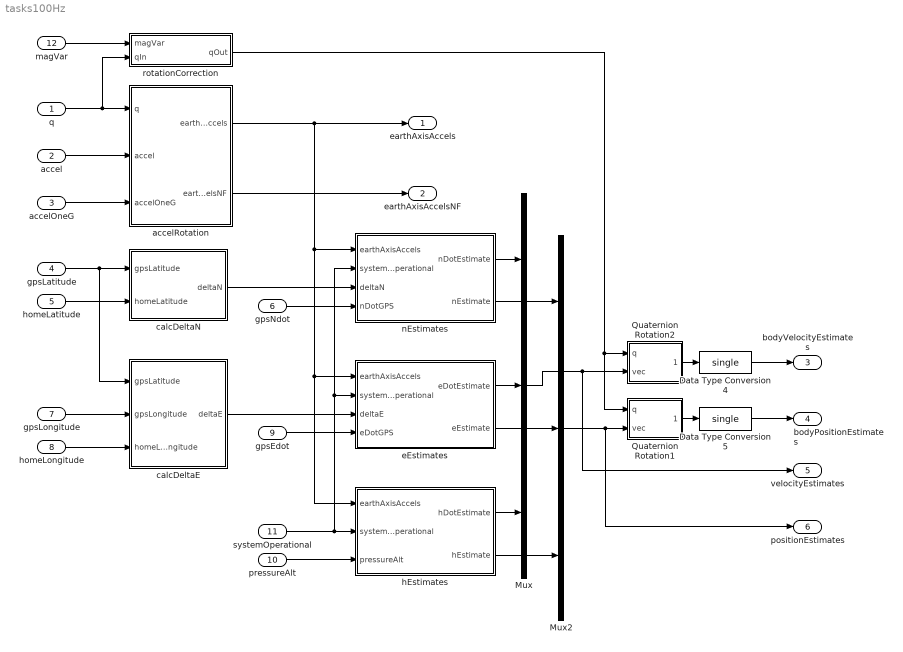
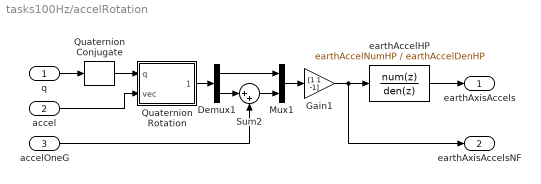
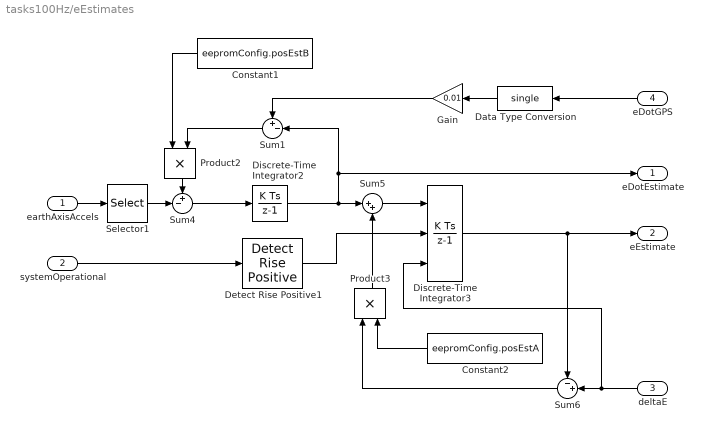
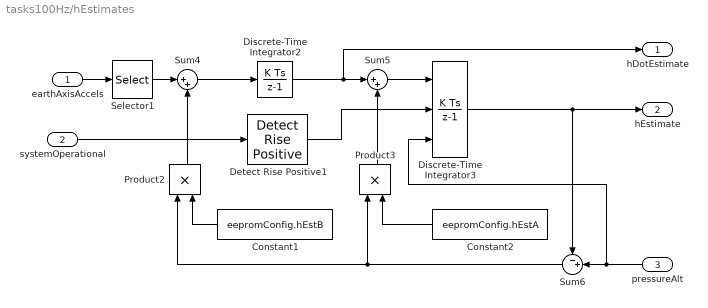
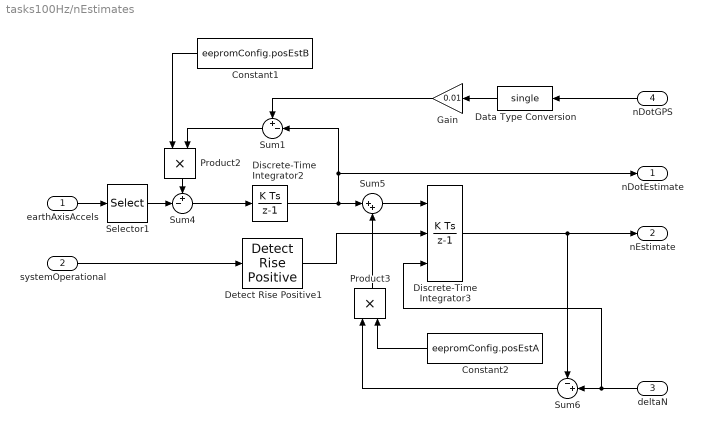
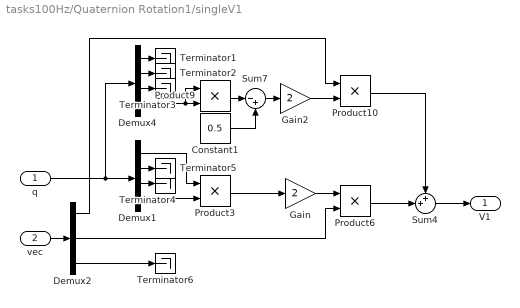
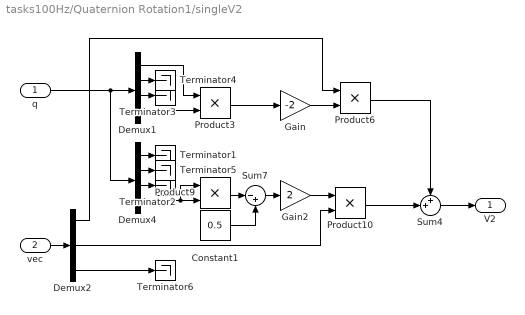
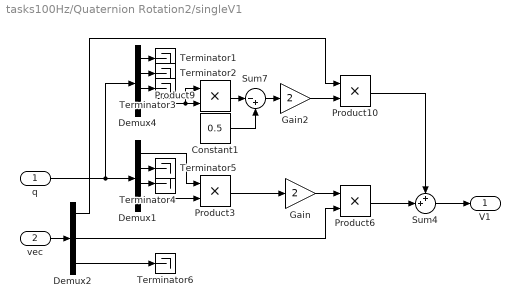
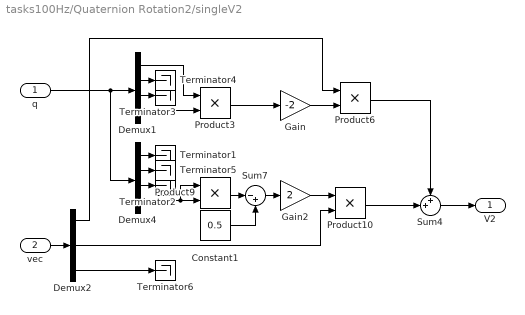
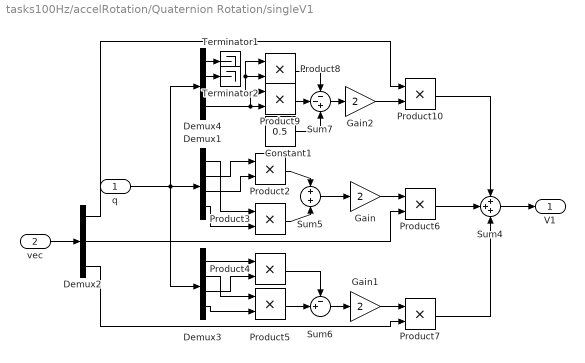
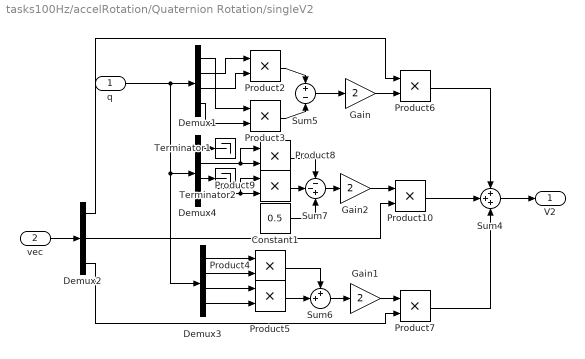
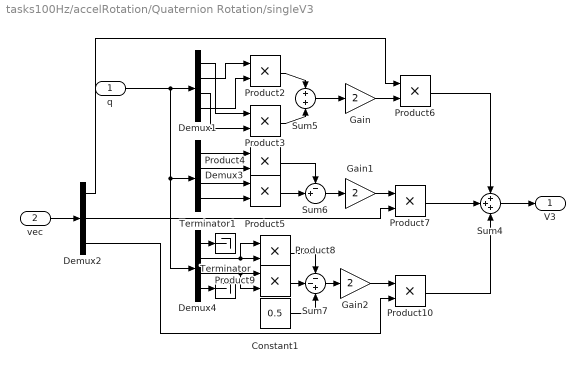
== system tasks100Hz/Quaternion Rotation1 ==
  q : Inport
  vec : Inport  Port=2
  Mux1 : Mux  Inputs=3
  Quaternion Normalize : aerolibutil/Quaternion Normalize
  singleV1 : Subsystem
  singleV2 : Subsystem
  singleV3 : Subsystem
  vec_rot : Outport
  wires:
  q/1 -> Quaternion Normalize/1
  singleV1/1(V1) -> Mux1/1
  vec/1 -> singleV1/2(vec), singleV3/2(vec), singleV2/2(vec)
  Quaternion Normalize/1 -> singleV1/1(q), singleV3/1(q), singleV2/1(q)
  Mux1/1 -> vec_rot/1
  singleV3/1(V3) -> Mux1/3
  singleV2/1(V2) -> Mux1/2

== system tasks100Hz/Quaternion Rotation2 ==
  q : Inport
  vec : Inport  Port=2
  Mux1 : Mux  Inputs=3
  Quaternion Normalize : aerolibutil/Quaternion Normalize
  singleV1 : Subsystem
  singleV2 : Subsystem
  singleV3 : Subsystem
  vec_rot : Outport
  wires:
  singleV2/1(V2) -> Mux1/2
  singleV3/1(V3) -> Mux1/3
  Mux1/1 -> vec_rot/1
  Quaternion Normalize/1 -> singleV2/1(q), singleV3/1(q), singleV1/1(q)
  vec/1 -> singleV2/2(vec), singleV3/2(vec), singleV1/2(vec)
  singleV1/1(V1) -> Mux1/1
  q/1 -> Quaternion Normalize/1

== system tasks100Hz/calcDeltaE ==
  gpsLatitude : Inport
  gpsLongitude : Inport  Port=2
  homeLongitude : Inport  Port=3
  Data Type Conversion2 : DataTypeConversion  OutDataTypeStr=single
  Data Type Conversion3 : DataTypeConversion  OutDataTypeStr=single
  Gain1 : Gain  Gain=pi / 180 * 1e-7
  Gain2 : Gain  Gain=0.01111949
  Product : Product
  Sum2 : Sum  Inputs=|+-
  Trigonometric Function : Trigonometry  Operator=cos
  stdRadianLimit : Subsystem
  deltaE : Outport
  wires:
  stdRadianLimit/1(stdDegrees) -> Gain2/1
  gpsLatitude/1 -> Data Type Conversion2/1
  Data Type Conversion3/1 -> stdRadianLimit/1(degrees)
  Product/1 -> deltaE/1
  Sum2/1 -> Data Type Conversion3/1
  homeLongitude/1 -> Sum2/2
  Gain2/1 -> Product/2
  Trigonometric Function/1 -> Product/1
  Gain1/1 -> Trigonometric Function/1
  Data Type Conversion2/1 -> Gain1/1
  gpsLongitude/1 -> Sum2/1

== system tasks100Hz/calcDeltaN ==
  gpsLatitude : Inport
  homeLatitude : Inport  Port=2
  Data Type Conversion1 : DataTypeConversion  OutDataTypeStr=single
  Gain : Gain  Gain=0.01111949
  Sum1 : Sum  Inputs=|+-
  deltaN : Outport
  wires:
  Sum1/1 -> Data Type Conversion1/1
  homeLatitude/1 -> Sum1/2
  Data Type Conversion1/1 -> Gain/1
  gpsLatitude/1 -> Sum1/1
  Gain/1 -> deltaN/1

== system tasks100Hz/rotationCorrection ==
  magVar : Inport
  qIn : Inport  Port=2
  Demux : Demux  Outputs=[1 2]
  Gain3 : Gain  Gain=[1 0 0]
  Mux : Mux  Inputs=[1 2]
  Quaternions to Rotation Angles : aerolibtransform2/Quaternions to Rotation Angles  rotationOrder=ZYX
  Rotation Angles to Quaternions Rotation Order: ZYX : Subsystem
  Sum : Sum  Inputs=++|
  stdRadianLimit : Subsystem
  qOut : Outport
  wires:
  Mux/1 -> Rotation Angles to Quaternions Rotation Order: ZYX/1("R1, R2, R3")
  Gain3/1 -> Demux/1
  stdRadianLimit/1(stdRadians) -> Mux/1
  Demux/1 -> Sum/2
  Demux/2 -> Mux/2
  magVar/1 -> Sum/1
  Sum/1 -> stdRadianLimit/1(radians)
  qIn/1 -> Quaternions to Rotation Angles/1
  Quaternions to Rotation Angles/1 -> Gain3/1
  Rotation Angles to Quaternions Rotation Order: ZYX/1(q) -> qOut/1

== system tasks100Hz/Quaternion Rotation1/singleV3 ==
  q : Inport
  vec : Inport  Port=2
  Demux2 : Demux  Outputs=3
  Terminator1 : Terminator
  Terminator2 : Terminator
  Terminator3 : Terminator
  V3 : Outport
  wires:
  vec/1 -> Demux2/1
  Demux2/1 -> Terminator2/1
  Demux2/2 -> Terminator3/1
  Demux2/3 -> V3/1
  q/1 -> Terminator1/1

== system tasks100Hz/Quaternion Rotation2/singleV3 ==
  q : Inport
  vec : Inport  Port=2
  Demux2 : Demux  Outputs=3
  Terminator1 : Terminator
  Terminator2 : Terminator
  Terminator3 : Terminator
  V3 : Outport
  wires:
  q/1 -> Terminator1/1
  Demux2/3 -> V3/1
  Demux2/2 -> Terminator3/1
  Demux2/1 -> Terminator2/1
  vec/1 -> Demux2/1

== system tasks100Hz/accelRotation/Quaternion Rotation ==
  q : Inport
  vec : Inport  Port=2
  Mux1 : Mux  Inputs=3
  Quaternion Normalize : aerolibutil/Quaternion Normalize
  singleV1 : Subsystem
  singleV2 : Subsystem
  singleV3 : Subsystem
  vec_rot : Outport
  wires:
  singleV2/1(V2) -> Mux1/2
  singleV3/1(V3) -> Mux1/3
  Mux1/1 -> vec_rot/1
  Quaternion Normalize/1 -> singleV2/1(q), singleV3/1(q), singleV1/1(q)
  vec/1 -> singleV2/2(vec), singleV3/2(vec), singleV1/2(vec)
  singleV1/1(V1) -> Mux1/1
  q/1 -> Quaternion Normalize/1

== system tasks100Hz/calcDeltaE/stdRadianLimit ==
  degrees : Inport
  Bias : Bias  Bias=- 360e7
  Bias1 : Bias  Bias=360e7
  Compare To Constant : simulink/Logic and Bit Operations/Compare To Constant  relop=>=  const=180e7  OutDataTypeStr=boolean
  Compare To Constant1 : simulink/Logic and Bit Operations/Compare To Constant  relop=<  const=-180e7  OutDataTypeStr=boolean
  Switch : Switch  Criteria=u2 > Threshold
  Switch1 : Switch  Criteria=u2 > Threshold
  stdDegrees : Outport
  wires:
  Switch/1 -> stdDegrees/1
  degrees/1 -> Bias/1, Compare To Constant/1, Bias1/1, Compare To Constant1/1, Switch1/3
  Switch1/1 -> Switch/3
  Compare To Constant1/1 -> Switch1/2
  Bias1/1 -> Switch1/1
  Bias/1 -> Switch/1
  Compare To Constant/1 -> Switch/2

== system tasks100Hz/rotationCorrection/Rotation Angles to Quaternions Rotation Order: ZYX ==
  "R1, R2, R3" : Inport
  1/2 : Gain  Gain=0.5  SaturateOnIntegerOverflow=on  OutDataTypeStr=Inherit: Same as input  ParamDataTypeStr=Inherit: Same as input
  Mux4 : Mux
  Selector : Selector  IndexMode=Zero-based  InputPortWidth=3  Indices=0
  Trigonometric Function : Trigonometry
  Trigonometric Function1 : Trigonometry  Operator=cos
  q1 : Constant  Value=0  OutDataTypeStr=single
  q2 : Constant  Value=0  OutDataTypeStr=single
  q : Outport
  wires:
  Selector/1 -> 1/2/1
  "R1, R2, R3"/1 -> Selector/1
  q1/1 -> Mux4/2
  Trigonometric Function1/1 -> Mux4/1
  1/2/1 -> Trigonometric Function/1, Trigonometric Function1/1
  q2/1 -> Mux4/3
  Trigonometric Function/1 -> Mux4/4
  Mux4/1 -> q/1

== system tasks100Hz/rotationCorrection/stdRadianLimit ==
  radians : Inport
  Bias : Bias  Bias=- 2*pi
  Bias1 : Bias  Bias=2*pi
  Compare To Constant : simulink/Logic and Bit Operations/Compare To Constant  relop=>=  const=pi  OutDataTypeStr=boolean
  Compare To Constant1 : simulink/Logic and Bit Operations/Compare To Constant  relop=<  const=-pi  OutDataTypeStr=boolean
  Switch : Switch  Criteria=u2 > Threshold
  Switch1 : Switch  Criteria=u2 > Threshold
  stdRadians : Outport
  wires:
  Switch/1 -> stdRadians/1
  radians/1 -> Bias/1, Compare To Constant/1, Bias1/1, Compare To Constant1/1, Switch1/3
  Switch1/1 -> Switch/3
  Compare To Constant1/1 -> Switch1/2
  Bias1/1 -> Switch1/1
  Bias/1 -> Switch/1
  Compare To Constant/1 -> Switch/2

/*
 * File: tasks100Hz.c
 *
 * Code generated for Simulink model 'tasks100Hz'.
 *
 * Model version                  : 1.392
 * Simulink Coder version         : 8.6 (R2014a) 27-Dec-2013
 * C/C++ source code generated on : Mon Sep 22 19:36:36 2014
 *
 * Target selection: ert.tlc
 * Embedded hardware selection: STMicroelectronics->STM32F4xx 32-bit Cortex-M4
 * Code generation objectives: Unspecified
 * Validation result: Not run
 */

#include "tasks100Hz.h"

/* Exported block parameters */
real32_T earthAccelDenHP[2] = { 1.0F, -0.997503102F } ;/* Variable: earthAccelDenHP
                                                        * Referenced by: '<S3>/earthAccelHP'
                                                        */

real32_T earthAccelNumHP[2] = { 0.998751581F, -0.998751581F } ;/* Variable: earthAccelNumHP
                                                                * Referenced by: '<S3>/earthAccelHP'
                                                                */

/* Block states (auto storage) */
DW_tasks100Hz_T tasks100Hz_DW;

/* External inputs (root inport signals with auto storage) */
ExtU_tasks100Hz_T tasks100Hz_U;

/* External outputs (root outports fed by signals with auto storage) */
ExtY_tasks100Hz_T tasks100Hz_Y;

/* Real-time model */
RT_MODEL_tasks100Hz_T tasks100Hz_M_;
RT_MODEL_tasks100Hz_T *const tasks100Hz_M = &tasks100Hz_M_;

/* Model step function */
void tasks100Hz_step(void)
{
  /* local block i/o variables */
  boolean_T rtb_FixPtRelationalOperator;
  boolean_T rtb_FixPtRelationalOperator_d;
  boolean_T rtb_FixPtRelationalOperator_f;
  real32_T rtb_Product3_d;
  real32_T rtb_DiscreteTimeIntegrator2;
  real32_T rtb_DiscreteTimeIntegrator3;
  real32_T rtb_DiscreteTimeIntegrator3_f;
  real32_T rtb_Product1_c1;
  real32_T rtb_Product2_i;
  real32_T rtb_Product3_b3;
  real32_T rtb_Sum2;
  boolean_T rtb_Compare_dq;
  real32_T rtb_Gain1_e_idx_0;
  real32_T rtb_Gain1_e_idx_1;
  real32_T rtb_Gain1_e_idx_2;
  real32_T rtb_earthAccelHP_idx_0;
  real32_T rtb_earthAccelHP_idx_1;
  real32_T rtb_earthAccelHP_idx_2;

  /* Outputs for Atomic SubSystem: '<Root>/accelRotation' */
  /* Sqrt: '<S28>/sqrt' incorporates:
   *  Inport: '<Root>/q'
   *  Product: '<S29>/Product'
   *  Product: '<S29>/Product1'
   *  Product: '<S29>/Product2'
   *  Product: '<S29>/Product3'
   *  Sum: '<S29>/Sum'
   *  UnaryMinus: '<S22>/Unary Minus'
   *  UnaryMinus: '<S22>/Unary Minus1'
   *  UnaryMinus: '<S22>/Unary Minus2'
   */
  rtb_Sum2 = (real32_T)sqrt((((tasks100Hz_U.q[0] * tasks100Hz_U.q[0]) +
    ((-tasks100Hz_U.q[1]) * (-tasks100Hz_U.q[1]))) + ((-tasks100Hz_U.q[2]) *
    (-tasks100Hz_U.q[2]))) + ((-tasks100Hz_U.q[3]) * (-tasks100Hz_U.q[3])));

  /* Product: '<S24>/Product2' incorporates:
   *  Inport: '<Root>/q'
   *  UnaryMinus: '<S22>/Unary Minus1'
   */
  rtb_Product2_i = (-tasks100Hz_U.q[2]) / rtb_Sum2;

  /* Product: '<S24>/Product3' incorporates:
   *  Inport: '<Root>/q'
   *  UnaryMinus: '<S22>/Unary Minus2'
   */
  rtb_Product3_b3 = (-tasks100Hz_U.q[3]) / rtb_Sum2;

  /* Product: '<S24>/Product1' incorporates:
   *  Inport: '<Root>/q'
   *  UnaryMinus: '<S22>/Unary Minus'
   */
  rtb_Product1_c1 = (-tasks100Hz_U.q[1]) / rtb_Sum2;

  /* Product: '<S24>/Product' incorporates:
   *  Inport: '<Root>/q'
   */
  rtb_Sum2 = tasks100Hz_U.q[0] / rtb_Sum2;

  /* Gain: '<S3>/Gain1' incorporates:
   *  Constant: '<S25>/Constant1'
   *  Constant: '<S26>/Constant1'
   *  Constant: '<S27>/Constant1'
   *  Gain: '<S25>/Gain'
   *  Gain: '<S25>/Gain1'
   *  Gain: '<S25>/Gain2'
   *  Gain: '<S26>/Gain'
   *  Gain: '<S26>/Gain1'
   *  Gain: '<S26>/Gain2'
   *  Gain: '<S27>/Gain'
   *  Gain: '<S27>/Gain1'
   *  Gain: '<S27>/Gain2'
   *  Inport: '<Root>/accel'
   *  Inport: '<Root>/accelOneG'
   *  Product: '<S25>/Product10'
   *  Product: '<S25>/Product2'
   *  Product: '<S25>/Product3'
   *  Product: '<S25>/Product4'
   *  Product: '<S25>/Product5'
   *  Product: '<S25>/Product6'
   *  Product: '<S25>/Product7'
   *  Product: '<S25>/Product8'
   *  Product: '<S25>/Product9'
   *  Product: '<S26>/Product10'
   *  Product: '<S26>/Product2'
   *  Product: '<S26>/Product3'
   *  Product: '<S26>/Product4'
   *  Product: '<S26>/Product5'
   *  Product: '<S26>/Product6'
   *  Product: '<S26>/Product7'
   *  Product: '<S26>/Product8'
   *  Product: '<S26>/Product9'
   *  Product: '<S27>/Product10'
   *  Product: '<S27>/Product2'
   *  Product: '<S27>/Product3'
   *  Product: '<S27>/Product4'
   *  Product: '<S27>/Product5'
   *  Product: '<S27>/Product6'
   *  Product: '<S27>/Product7'
   *  Product: '<S27>/Product8'
   *  Product: '<S27>/Product9'
   *  Sum: '<S25>/Sum4'
   *  Sum: '<S25>/Sum5'
   *  Sum: '<S25>/Sum6'
   *  Sum: '<S25>/Sum7'
   *  Sum: '<S26>/Sum4'
   *  Sum: '<S26>/Sum5'
   *  Sum: '<S26>/Sum6'
   *  Sum: '<S26>/Sum7'
   *  Sum: '<S27>/Sum4'
   *  Sum: '<S27>/Sum5'
   *  Sum: '<S27>/Sum6'
   *  Sum: '<S27>/Sum7'
   *  Sum: '<S3>/Sum2'
   */
  rtb_Gain1_e_idx_0 = (((((0.5F - (rtb_Product2_i * rtb_Product2_i)) -
    (rtb_Product3_b3 * rtb_Product3_b3)) * 2.0F) * tasks100Hz_U.accel[0]) +
                       ((((rtb_Product1_c1 * rtb_Product2_i) + (rtb_Sum2 *
    rtb_Product3_b3)) * 2.0F) * tasks100Hz_U.accel[1])) + ((((rtb_Product1_c1 *
    rtb_Product3_b3) - (rtb_Sum2 * rtb_Product2_i)) * 2.0F) *
    tasks100Hz_U.accel[2]);
  rtb_Gain1_e_idx_1 = (((((0.5F - (rtb_Product1_c1 * rtb_Product1_c1)) -
    (rtb_Product3_b3 * rtb_Product3_b3)) * 2.0F) * tasks100Hz_U.accel[1]) +
                       ((((rtb_Product1_c1 * rtb_Product2_i) - (rtb_Sum2 *
    rtb_Product3_b3)) * 2.0F) * tasks100Hz_U.accel[0])) + ((((rtb_Sum2 *
    rtb_Product1_c1) + (rtb_Product2_i * rtb_Product3_b3)) * 2.0F) *
    tasks100Hz_U.accel[2]);
  rtb_Gain1_e_idx_2 = -(((((((rtb_Product1_c1 * rtb_Product3_b3) + (rtb_Sum2 *
    rtb_Product2_i)) * 2.0F) * tasks100Hz_U.accel[0]) + ((((rtb_Product2_i *
    rtb_Product3_b3) - (rtb_Sum2 * rtb_Product1_c1)) * 2.0F) *
    tasks100Hz_U.accel[1])) + ((((0.5F - (rtb_Product1_c1 * rtb_Product1_c1)) -
                            (rtb_Product2_i * rtb_Product2_i)) * 2.0F) *
    tasks100Hz_U.accel[2])) + tasks100Hz_U.accelOneG);

  /* DiscreteTransferFcn: '<S3>/earthAccelHP' */
  tasks100Hz_DW.earthAccelHP_tmp[0U] = 0.0F;
  tasks100Hz_DW.earthAccelHP_tmp[0] = (rtb_Gain1_e_idx_0 - (earthAccelDenHP[1] *
    tasks100Hz_DW.earthAccelHP_states[0])) / earthAccelDenHP[0];
  rtb_earthAccelHP_idx_0 = (earthAccelNumHP[0] * tasks100Hz_DW.earthAccelHP_tmp
    [0]) + (earthAccelNumHP[1] * tasks100Hz_DW.earthAccelHP_states[0]);
  tasks100Hz_DW.earthAccelHP_tmp[1] = (rtb_Gain1_e_idx_1 - (earthAccelDenHP[1] *
    tasks100Hz_DW.earthAccelHP_states[1])) / earthAccelDenHP[0];
  rtb_earthAccelHP_idx_1 = (earthAccelNumHP[0] * tasks100Hz_DW.earthAccelHP_tmp
    [1]) + (earthAccelNumHP[1] * tasks100Hz_DW.earthAccelHP_states[1]);
  tasks100Hz_DW.earthAccelHP_tmp[2] = (rtb_Gain1_e_idx_2 - (earthAccelDenHP[1] *
    tasks100Hz_DW.earthAccelHP_states[2])) / earthAccelDenHP[0];
  rtb_Sum2 = (earthAccelNumHP[0] * tasks100Hz_DW.earthAccelHP_tmp[2]) +
    (earthAccelNumHP[1] * tasks100Hz_DW.earthAccelHP_states[2]);
  rtb_earthAccelHP_idx_2 = rtb_Sum2;

  /* Update for DiscreteTransferFcn: '<S3>/earthAccelHP' */
  tasks100Hz_DW.earthAccelHP_states[0] = tasks100Hz_DW.earthAccelHP_tmp[0];
  tasks100Hz_DW.earthAccelHP_states[1] = tasks100Hz_DW.earthAccelHP_tmp[1];
  tasks100Hz_DW.earthAccelHP_states[2] = tasks100Hz_DW.earthAccelHP_tmp[2];

  /* End of Outputs for SubSystem: '<Root>/accelRotation' */

  /* Outport: '<Root>/earthAxisAccels' incorporates:
   *  DiscreteTransferFcn: '<S3>/earthAccelHP'
   */
  tasks100Hz_Y.earthAxisAccels[0] = rtb_earthAccelHP_idx_0;
  tasks100Hz_Y.earthAxisAccels[1] = rtb_earthAccelHP_idx_1;

  /* Outputs for Atomic SubSystem: '<Root>/accelRotation' */
  tasks100Hz_Y.earthAxisAccels[2] = rtb_Sum2;

  /* End of Outputs for SubSystem: '<Root>/accelRotation' */

  /* Outport: '<Root>/earthAxisAccelsNF' */
  tasks100Hz_Y.earthAxisAccelsNF[0] = rtb_Gain1_e_idx_0;
  tasks100Hz_Y.earthAxisAccelsNF[1] = rtb_Gain1_e_idx_1;
  tasks100Hz_Y.earthAxisAccelsNF[2] = rtb_Gain1_e_idx_2;

  /* Outputs for Atomic SubSystem: '<Root>/calcDeltaN' */
  /* Gain: '<S5>/Gain' incorporates:
   *  DataTypeConversion: '<S5>/Data Type Conversion1'
   *  Inport: '<Root>/gpsLatitude'
   *  Inport: '<Root>/homeLatitude'
   *  Sum: '<S5>/Sum1'
   */
  rtb_Sum2 = ((real32_T)(tasks100Hz_U.gpsLatitude - tasks100Hz_U.homeLatitude)) *
    0.0111194896F;

  /* End of Outputs for SubSystem: '<Root>/calcDeltaN' */

  /* Outputs for Atomic SubSystem: '<Root>/nEstimates' */
  /* RelationalOperator: '<S38>/Compare' incorporates:
   *  Constant: '<S38>/Constant'
   *  Inport: '<Root>/systemOperational'
   */
  rtb_Compare_dq = (tasks100Hz_U.systemOperational > 0);

  /* RelationalOperator: '<S37>/FixPt Relational Operator' incorporates:
   *  UnitDelay: '<S37>/Delay Input1'
   */
  rtb_FixPtRelationalOperator = (((int32_T)rtb_Compare_dq) > ((int32_T)
    tasks100Hz_DW.DelayInput1_DSTATE));

  /* DiscreteIntegrator: '<S8>/Discrete-Time Integrator2' */
  rtb_DiscreteTimeIntegrator2 = tasks100Hz_DW.DiscreteTimeIntegrator2_DSTATE;

  /* DiscreteIntegrator: '<S8>/Discrete-Time Integrator3' */
  if (tasks100Hz_DW.DiscreteTimeIntegrator3_IC_LOAD != 0) {
    tasks100Hz_DW.DiscreteTimeIntegrator3_DSTATE = rtb_Sum2;
  }

  if (rtb_FixPtRelationalOperator &&
      (tasks100Hz_DW.DiscreteTimeIntegrator3_PrevRes <= 0)) {
    tasks100Hz_DW.DiscreteTimeIntegrator3_DSTATE = rtb_Sum2;
  }

  rtb_DiscreteTimeIntegrator3 = tasks100Hz_DW.DiscreteTimeIntegrator3_DSTATE;

  /* Sum: '<S8>/Sum5' incorporates:
   *  Constant: '<S8>/Constant2'
   *  DiscreteIntegrator: '<S8>/Discrete-Time Integrator2'
   *  DiscreteIntegrator: '<S8>/Discrete-Time Integrator3'
   *  Product: '<S8>/Product3'
   *  Sum: '<S8>/Sum6'
   */
  rtb_Sum2 = ((rtb_Sum2 - tasks100Hz_DW.DiscreteTimeIntegrator3_DSTATE) *
              eepromConfig.posEstA) +
    tasks100Hz_DW.DiscreteTimeIntegrator2_DSTATE;

  /* Update for UnitDelay: '<S37>/Delay Input1' */
  tasks100Hz_DW.DelayInput1_DSTATE = rtb_Compare_dq;

  /* Update for DiscreteIntegrator: '<S8>/Discrete-Time Integrator2' incorporates:
   *  Constant: '<S8>/Constant1'
   *  DataTypeConversion: '<S8>/Data Type Conversion'
   *  DiscreteIntegrator: '<S8>/Discrete-Time Integrator2'
   *  Gain: '<S8>/Gain'
   *  Update for Inport: '<Root>/gpsNdot'
   *  Product: '<S8>/Product2'
   *  Sum: '<S8>/Sum1'
   *  Sum: '<S8>/Sum4'
   */
  tasks100Hz_DW.DiscreteTimeIntegrator2_DSTATE += ((((0.01F * ((real32_T)
    tasks100Hz_U.gpsNdot)) - tasks100Hz_DW.DiscreteTimeIntegrator2_DSTATE) *
    eepromConfig.posEstB) - rtb_earthAccelHP_idx_0) * 0.01F;

  /* Update for DiscreteIntegrator: '<S8>/Discrete-Time Integrator3' */
  tasks100Hz_DW.DiscreteTimeIntegrator3_IC_LOAD = 0U;
  tasks100Hz_DW.DiscreteTimeIntegrator3_DSTATE += 0.01F * rtb_Sum2;
  if (rtb_FixPtRelationalOperator) {
    tasks100Hz_DW.DiscreteTimeIntegrator3_PrevRes = 1;
  } else {
    tasks100Hz_DW.DiscreteTimeIntegrator3_PrevRes = 0;
  }

  /* End of Update for DiscreteIntegrator: '<S8>/Discrete-Time Integrator3' */
  /* End of Outputs for SubSystem: '<Root>/nEstimates' */

  /* Outputs for Atomic SubSystem: '<Root>/rotationCorrection' */
  /* Sqrt: '<S43>/sqrt' incorporates:
   *  Inport: '<Root>/q'
   *  Product: '<S44>/Product'
   *  Product: '<S44>/Product1'
   *  Product: '<S44>/Product2'
   *  Product: '<S44>/Product3'
   *  Sum: '<S44>/Sum'
   */
  rtb_Sum2 = (real32_T)sqrt((((tasks100Hz_U.q[0] * tasks100Hz_U.q[0]) +
    (tasks100Hz_U.q[1] * tasks100Hz_U.q[1])) + (tasks100Hz_U.q[2] *
    tasks100Hz_U.q[2])) + (tasks100Hz_U.q[3] * tasks100Hz_U.q[3]));

  /* Product: '<S42>/Product' incorporates:
   *  Inport: '<Root>/q'
   */
  rtb_Product2_i = tasks100Hz_U.q[0] / rtb_Sum2;

  /* Product: '<S42>/Product1' incorporates:
   *  Inport: '<Root>/q'
   */
  rtb_Product3_b3 = tasks100Hz_U.q[1] / rtb_Sum2;

  /* Product: '<S42>/Product2' incorporates:
   *  Inport: '<Root>/q'
   */
  rtb_Product1_c1 = tasks100Hz_U.q[2] / rtb_Sum2;

  /* Product: '<S42>/Product3' incorporates:
   *  Inport: '<Root>/q'
   */
  rtb_Sum2 = tasks100Hz_U.q[3] / rtb_Sum2;

  /* Sum: '<S9>/Sum' incorporates:
   *  Fcn: '<S39>/fcn1'
   *  Fcn: '<S39>/fcn2'
   *  Inport: '<Root>/magVar'
   *  Trigonometry: '<S39>/Trigonometric Function1'
   */
  rtb_Gain1_e_idx_2 = ((real32_T)atan2(((rtb_Product3_b3 * rtb_Product1_c1) +
    (rtb_Product2_i * rtb_Sum2)) * 2.0F, (((rtb_Product2_i * rtb_Product2_i) +
    (rtb_Product3_b3 * rtb_Product3_b3)) - (rtb_Product1_c1 * rtb_Product1_c1))
    - (rtb_Sum2 * rtb_Sum2))) + tasks100Hz_U.magVar;

  /* Switch: '<S41>/Switch' incorporates:
   *  Bias: '<S41>/Bias'
   *  Constant: '<S45>/Constant'
   *  Constant: '<S46>/Constant'
   *  RelationalOperator: '<S45>/Compare'
   *  RelationalOperator: '<S46>/Compare'
   *  Switch: '<S41>/Switch1'
   */
  if (rtb_Gain1_e_idx_2 >= 3.14159274F) {
    rtb_Gain1_e_idx_2 += -6.28318548F;
  } else {
    if (rtb_Gain1_e_idx_2 < -3.14159274F) {
      /* Switch: '<S41>/Switch1' incorporates:
       *  Bias: '<S41>/Bias1'
       */
      rtb_Gain1_e_idx_2 += 6.28318548F;
    }
  }

  /* End of Switch: '<S41>/Switch' */

  /* Gain: '<S40>/1//2' */
  rtb_Gain1_e_idx_2 *= 0.5F;

  /* Trigonometry: '<S40>/Trigonometric Function' */
  rtb_earthAccelHP_idx_0 = (real32_T)sin(rtb_Gain1_e_idx_2);

  /* Trigonometry: '<S40>/Trigonometric Function1' */
  rtb_Gain1_e_idx_0 = (real32_T)cos(rtb_Gain1_e_idx_2);

  /* End of Outputs for SubSystem: '<Root>/rotationCorrection' */

  /* Sqrt: '<S20>/sqrt' incorporates:
   *  Product: '<S21>/Product'
   *  Product: '<S21>/Product3'
   *  Sum: '<S21>/Sum'
   */
  rtb_Gain1_e_idx_1 = (real32_T)sqrt((rtb_Gain1_e_idx_0 * rtb_Gain1_e_idx_0) +
    (rtb_earthAccelHP_idx_0 * rtb_earthAccelHP_idx_0));

  /* Product: '<S16>/Product3' */
  rtb_Product3_d = rtb_earthAccelHP_idx_0 / rtb_Gain1_e_idx_1;

  /* Product: '<S16>/Product' */
  rtb_Gain1_e_idx_1 = rtb_Gain1_e_idx_0 / rtb_Gain1_e_idx_1;

  /* Outputs for Atomic SubSystem: '<Root>/calcDeltaE' */
  /* DataTypeConversion: '<S4>/Data Type Conversion3' incorporates:
   *  Inport: '<Root>/gpsLongitude'
   *  Inport: '<Root>/homeLongitude'
   *  Sum: '<S4>/Sum2'
   */
  rtb_Sum2 = (real32_T)(tasks100Hz_U.gpsLongitude - tasks100Hz_U.homeLongitude);

  /* Switch: '<S30>/Switch' incorporates:
   *  Bias: '<S30>/Bias'
   *  Constant: '<S31>/Constant'
   *  Constant: '<S32>/Constant'
   *  DataTypeConversion: '<S4>/Data Type Conversion3'
   *  Inport: '<Root>/gpsLongitude'
   *  Inport: '<Root>/homeLongitude'
   *  RelationalOperator: '<S31>/Compare'
   *  RelationalOperator: '<S32>/Compare'
   *  Sum: '<S4>/Sum2'
   *  Switch: '<S30>/Switch1'
   */
  if (rtb_Sum2 >= 1.8E+9F) {
    rtb_Sum2 += -3.6E+9F;
  } else if (rtb_Sum2 < -1.8E+9F) {
    /* Switch: '<S30>/Switch1' incorporates:
     *  Bias: '<S30>/Bias1'
     */
    rtb_Sum2 += 3.6E+9F;
  } else {
    rtb_Sum2 = (real32_T)(tasks100Hz_U.gpsLongitude - tasks100Hz_U.homeLongitude);
  }

  /* End of Switch: '<S30>/Switch' */

  /* Product: '<S4>/Product' incorporates:
   *  DataTypeConversion: '<S4>/Data Type Conversion2'
   *  Gain: '<S4>/Gain1'
   *  Gain: '<S4>/Gain2'
   *  Inport: '<Root>/gpsLatitude'
   *  Trigonometry: '<S4>/Trigonometric Function'
   */
  rtb_Sum2 = ((real32_T)cos(1.74532921E-9F * ((real32_T)tasks100Hz_U.gpsLatitude)))
    * (0.0111194896F * rtb_Sum2);

  /* End of Outputs for SubSystem: '<Root>/calcDeltaE' */

  /* Outputs for Atomic SubSystem: '<Root>/eEstimates' */
  /* RelationalOperator: '<S34>/Compare' incorporates:
   *  Constant: '<S34>/Constant'
   *  Inport: '<Root>/systemOperational'
   */
  rtb_Compare_dq = (tasks100Hz_U.systemOperational > 0);

  /* RelationalOperator: '<S33>/FixPt Relational Operator' incorporates:
   *  UnitDelay: '<S33>/Delay Input1'
   */
  rtb_FixPtRelationalOperator_f = (((int32_T)rtb_Compare_dq) > ((int32_T)
    tasks100Hz_DW.DelayInput1_DSTATE_c));

  /* DiscreteIntegrator: '<S6>/Discrete-Time Integrator2' */
  rtb_Gain1_e_idx_2 = tasks100Hz_DW.DiscreteTimeIntegrator2_DSTAT_a;

  /* DiscreteIntegrator: '<S6>/Discrete-Time Integrator3' */
  if (tasks100Hz_DW.DiscreteTimeIntegrator3_IC_LO_i != 0) {
    tasks100Hz_DW.DiscreteTimeIntegrator3_DSTAT_c = rtb_Sum2;
  }

  if (rtb_FixPtRelationalOperator_f &&
      (tasks100Hz_DW.DiscreteTimeIntegrator3_PrevR_d <= 0)) {
    tasks100Hz_DW.DiscreteTimeIntegrator3_DSTAT_c = rtb_Sum2;
  }

  rtb_DiscreteTimeIntegrator3_f = tasks100Hz_DW.DiscreteTimeIntegrator3_DSTAT_c;

  /* Sum: '<S6>/Sum5' incorporates:
   *  Constant: '<S6>/Constant2'
   *  DiscreteIntegrator: '<S6>/Discrete-Time Integrator2'
   *  DiscreteIntegrator: '<S6>/Discrete-Time Integrator3'
   *  Product: '<S6>/Product3'
   *  Sum: '<S6>/Sum6'
   */
  rtb_Sum2 = ((rtb_Sum2 - tasks100Hz_DW.DiscreteTimeIntegrator3_DSTAT_c) *
              eepromConfig.posEstA) +
    tasks100Hz_DW.DiscreteTimeIntegrator2_DSTAT_a;

  /* Update for UnitDelay: '<S33>/Delay Input1' */
  tasks100Hz_DW.DelayInput1_DSTATE_c = rtb_Compare_dq;

  /* Update for DiscreteIntegrator: '<S6>/Discrete-Time Integrator2' incorporates:
   *  Constant: '<S6>/Constant1'
   *  DataTypeConversion: '<S6>/Data Type Conversion'
   *  DiscreteIntegrator: '<S6>/Discrete-Time Integrator2'
   *  Gain: '<S6>/Gain'
   *  Update for Inport: '<Root>/gpsEdot'
   *  Product: '<S6>/Product2'
   *  Sum: '<S6>/Sum1'
   *  Sum: '<S6>/Sum4'
   */
  tasks100Hz_DW.DiscreteTimeIntegrator2_DSTAT_a += ((((0.01F * ((real32_T)
    tasks100Hz_U.gpsEdot)) - tasks100Hz_DW.DiscreteTimeIntegrator2_DSTAT_a) *
    eepromConfig.posEstB) - rtb_earthAccelHP_idx_1) * 0.01F;

  /* Update for DiscreteIntegrator: '<S6>/Discrete-Time Integrator3' */
  tasks100Hz_DW.DiscreteTimeIntegrator3_IC_LO_i = 0U;
  tasks100Hz_DW.DiscreteTimeIntegrator3_DSTAT_c += 0.01F * rtb_Sum2;
  if (rtb_FixPtRelationalOperator_f) {
    tasks100Hz_DW.DiscreteTimeIntegrator3_PrevR_d = 1;
  } else {
    tasks100Hz_DW.DiscreteTimeIntegrator3_PrevR_d = 0;
  }

  /* End of Update for DiscreteIntegrator: '<S6>/Discrete-Time Integrator3' */
  /* End of Outputs for SubSystem: '<Root>/eEstimates' */

  /* Outputs for Atomic SubSystem: '<Root>/hEstimates' */
  /* RelationalOperator: '<S36>/Compare' incorporates:
   *  Constant: '<S36>/Constant'
   *  Inport: '<Root>/systemOperational'
   */
  rtb_Compare_dq = (tasks100Hz_U.systemOperational > 0);

  /* RelationalOperator: '<S35>/FixPt Relational Operator' incorporates:
   *  UnitDelay: '<S35>/Delay Input1'
   */
  rtb_FixPtRelationalOperator_d = (((int32_T)rtb_Compare_dq) > ((int32_T)
    tasks100Hz_DW.DelayInput1_DSTATE_a));

  /* DiscreteIntegrator: '<S7>/Discrete-Time Integrator2' */
  rtb_Product3_b3 = tasks100Hz_DW.DiscreteTimeIntegrator2_DSTAT_p;

  /* DiscreteIntegrator: '<S7>/Discrete-Time Integrator3' incorporates:
   *  Inport: '<Root>/pressureAlt'
   */
  if (tasks100Hz_DW.DiscreteTimeIntegrator3_IC_LO_o != 0) {
    tasks100Hz_DW.DiscreteTimeIntegrator3_DSTAT_h = tasks100Hz_U.pressureAlt;
  }

  if (rtb_FixPtRelationalOperator_d &&
      (tasks100Hz_DW.DiscreteTimeIntegrator3_PrevR_p <= 0)) {
    tasks100Hz_DW.DiscreteTimeIntegrator3_DSTAT_h = tasks100Hz_U.pressureAlt;
  }

  rtb_Product1_c1 = tasks100Hz_DW.DiscreteTimeIntegrator3_DSTAT_h;

  /* Sum: '<S7>/Sum6' incorporates:
   *  DiscreteIntegrator: '<S7>/Discrete-Time Integrator3'
   *  Inport: '<Root>/pressureAlt'
   */
  rtb_Sum2 = tasks100Hz_U.pressureAlt -
    tasks100Hz_DW.DiscreteTimeIntegrator3_DSTAT_h;

  /* Sum: '<S7>/Sum5' incorporates:
   *  Constant: '<S7>/Constant2'
   *  DiscreteIntegrator: '<S7>/Discrete-Time Integrator2'
   *  Product: '<S7>/Product3'
   */
  rtb_Product2_i = (rtb_Sum2 * eepromConfig.hEstA) +
    tasks100Hz_DW.DiscreteTimeIntegrator2_DSTAT_p;

  /* Update for UnitDelay: '<S35>/Delay Input1' */
  tasks100Hz_DW.DelayInput1_DSTATE_a = rtb_Compare_dq;

  /* Update for DiscreteIntegrator: '<S7>/Discrete-Time Integrator2' incorporates:
   *  Constant: '<S7>/Constant1'
   *  Product: '<S7>/Product2'
   *  Sum: '<S7>/Sum4'
   */
  tasks100Hz_DW.DiscreteTimeIntegrator2_DSTAT_p += ((rtb_Sum2 *
    eepromConfig.hEstB) + rtb_earthAccelHP_idx_2) * 0.01F;

  /* Update for DiscreteIntegrator: '<S7>/Discrete-Time Integrator3' */
  tasks100Hz_DW.DiscreteTimeIntegrator3_IC_LO_o = 0U;
  tasks100Hz_DW.DiscreteTimeIntegrator3_DSTAT_h += 0.01F * rtb_Product2_i;
  if (rtb_FixPtRelationalOperator_d) {
    tasks100Hz_DW.DiscreteTimeIntegrator3_PrevR_p = 1;
  } else {
    tasks100Hz_DW.DiscreteTimeIntegrator3_PrevR_p = 0;
  }

  /* End of Update for DiscreteIntegrator: '<S7>/Discrete-Time Integrator3' */
  /* End of Outputs for SubSystem: '<Root>/hEstimates' */

  /* Outport: '<Root>/bodyVelocityEstimates' incorporates:
   *  Constant: '<S17>/Constant1'
   *  Constant: '<S18>/Constant1'
   *  Gain: '<S17>/Gain'
   *  Gain: '<S17>/Gain2'
   *  Gain: '<S18>/Gain'
   *  Gain: '<S18>/Gain2'
   *  Product: '<S17>/Product10'
   *  Product: '<S17>/Product3'
   *  Product: '<S17>/Product6'
   *  Product: '<S17>/Product9'
   *  Product: '<S18>/Product10'
   *  Product: '<S18>/Product3'
   *  Product: '<S18>/Product6'
   *  Product: '<S18>/Product9'
   *  Sum: '<S17>/Sum4'
   *  Sum: '<S17>/Sum7'
   *  Sum: '<S18>/Sum4'
   *  Sum: '<S18>/Sum7'
   */
  tasks100Hz_Y.bodyVelocityEstimates[0] = (((0.5F - (rtb_Product3_d *
    rtb_Product3_d)) * 2.0F) * rtb_DiscreteTimeIntegrator2) +
    (((rtb_Gain1_e_idx_1 * rtb_Product3_d) * 2.0F) * rtb_Gain1_e_idx_2);
  tasks100Hz_Y.bodyVelocityEstimates[1] = (((0.5F - (rtb_Product3_d *
    rtb_Product3_d)) * 2.0F) * rtb_Gain1_e_idx_2) + (((rtb_Gain1_e_idx_1 *
    rtb_Product3_d) * -2.0F) * rtb_DiscreteTimeIntegrator2);
  tasks100Hz_Y.bodyVelocityEstimates[2] = rtb_Product3_b3;

  /* Sqrt: '<S14>/sqrt' incorporates:
   *  Product: '<S15>/Product'
   *  Product: '<S15>/Product3'
   *  Sum: '<S15>/Sum'
   */
  rtb_Sum2 = (real32_T)sqrt((rtb_Gain1_e_idx_0 * rtb_Gain1_e_idx_0) +
    (rtb_earthAccelHP_idx_0 * rtb_earthAccelHP_idx_0));

  /* Product: '<S10>/Product3' */
  rtb_Product3_d = rtb_earthAccelHP_idx_0 / rtb_Sum2;

  /* Product: '<S10>/Product' */
  rtb_Sum2 = rtb_Gain1_e_idx_0 / rtb_Sum2;

  /* Outport: '<Root>/bodyPositionEstimates' incorporates:
   *  Constant: '<S11>/Constant1'
   *  Constant: '<S12>/Constant1'
   *  Gain: '<S11>/Gain'
   *  Gain: '<S11>/Gain2'
   *  Gain: '<S12>/Gain'
   *  Gain: '<S12>/Gain2'
   *  Product: '<S11>/Product10'
   *  Product: '<S11>/Product3'
   *  Product: '<S11>/Product6'
   *  Product: '<S11>/Product9'
   *  Product: '<S12>/Product10'
   *  Product: '<S12>/Product3'
   *  Product: '<S12>/Product6'
   *  Product: '<S12>/Product9'
   *  Sum: '<S11>/Sum4'
   *  Sum: '<S11>/Sum7'
   *  Sum: '<S12>/Sum4'
   *  Sum: '<S12>/Sum7'
   */
  tasks100Hz_Y.bodyPositionEstimates[0] = (((0.5F - (rtb_Product3_d *
    rtb_Product3_d)) * 2.0F) * rtb_DiscreteTimeIntegrator3) + (((rtb_Sum2 *
    rtb_Product3_d) * 2.0F) * rtb_DiscreteTimeIntegrator3_f);
  tasks100Hz_Y.bodyPositionEstimates[1] = (((0.5F - (rtb_Product3_d *
    rtb_Product3_d)) * 2.0F) * rtb_DiscreteTimeIntegrator3_f) + (((rtb_Sum2 *
    rtb_Product3_d) * -2.0F) * rtb_DiscreteTimeIntegrator3);
  tasks100Hz_Y.bodyPositionEstimates[2] = rtb_Product1_c1;

  /* Outport: '<Root>/velocityEstimates' */
  tasks100Hz_Y.velocityEstimates[0] = rtb_DiscreteTimeIntegrator2;
  tasks100Hz_Y.velocityEstimates[1] = rtb_Gain1_e_idx_2;
  tasks100Hz_Y.velocityEstimates[2] = rtb_Product3_b3;

  /* Outport: '<Root>/positionEstimates' */
  tasks100Hz_Y.positionEstimates[0] = rtb_DiscreteTimeIntegrator3;
  tasks100Hz_Y.positionEstimates[1] = rtb_DiscreteTimeIntegrator3_f;
  tasks100Hz_Y.positionEstimates[2] = rtb_Product1_c1;
}
